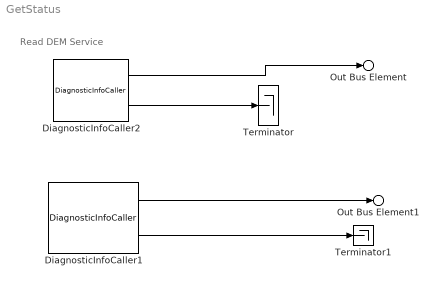
/*
 * File: GetStatus.c
 *
 * Code generated for Simulink model 'GetStatus'.
 *
 * Model version                  : 1.12
 * Simulink Coder version         : 24.1 (R2024a) 19-Nov-2023
 * C/C++ source code generated on : Mon Jul 14 23:46:02 2025
 *
 * Target selection: autosar.tlc
 * Embedded hardware selection: Intel->x86-64 (Windows64)
 * Code generation objectives: Unspecified
 * Validation result: Not run
 */

#include "GetStatus.h"
#include "Platform_Types.h"

/* Model step function */
void autosardemo2_Step(void)
{
  boolean rtb_DiagnosticInfoCaller1_o1;
  boolean rtb_DiagnosticInfoCaller2_o1;

  /* FunctionCaller: '<Root>/DiagnosticInfoCaller2' */
  Rte_Call_SpeedStuckHigh_GetEventFailed(&rtb_DiagnosticInfoCaller2_o1);

  /* FunctionCaller: '<Root>/DiagnosticInfoCaller1' */
  Rte_Call_SpeedStuckLow_GetEventFailed(&rtb_DiagnosticInfoCaller1_o1);

  /* Outport generated from: '<Root>/Out Bus Element' */
  Rte_IWrite_autosardemo2_Step_SpeedStuckHigh_GetFailedStatus_SpeedStuckHigh_GetFailedStatus
    (rtb_DiagnosticInfoCaller2_o1);

  /* Outport generated from: '<Root>/Out Bus Element1' */
  Rte_IWrite_autosardemo2_Step_SpeedStuckLow_GetFailedStatus_SpeedStuckLow_GetFailedStatus
    (rtb_DiagnosticInfoCaller1_o1);
}
